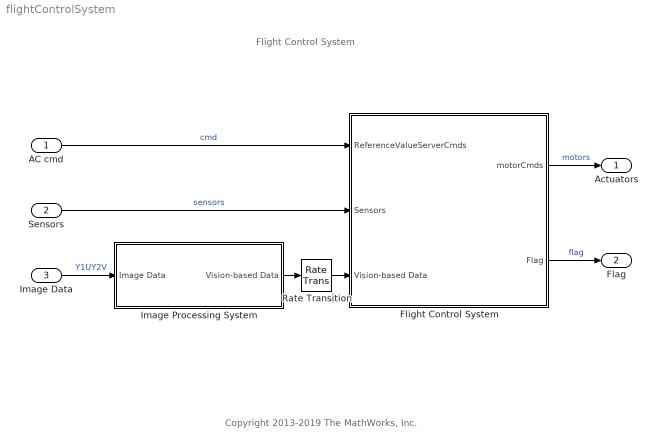
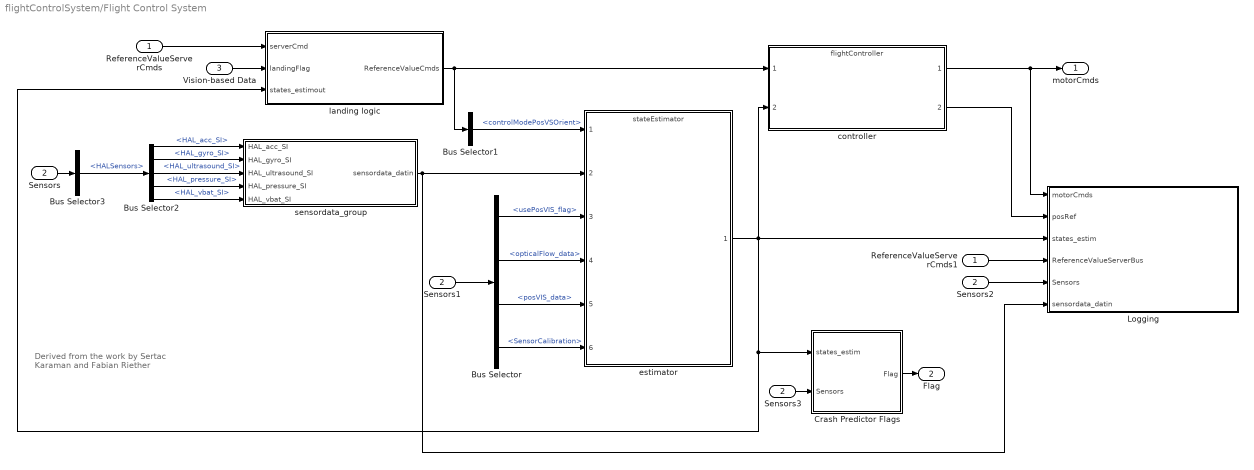
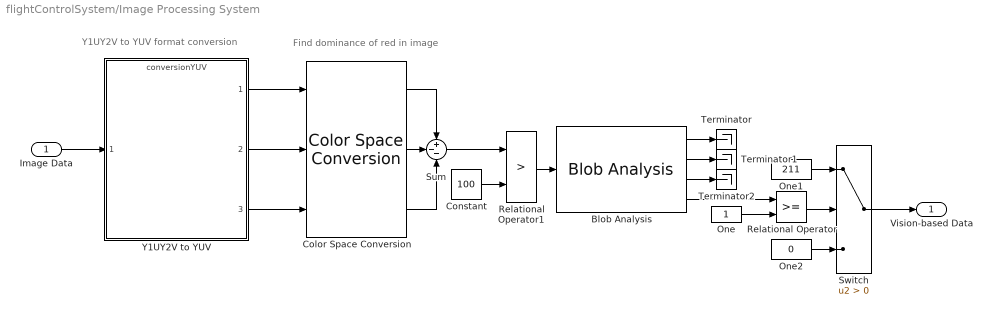
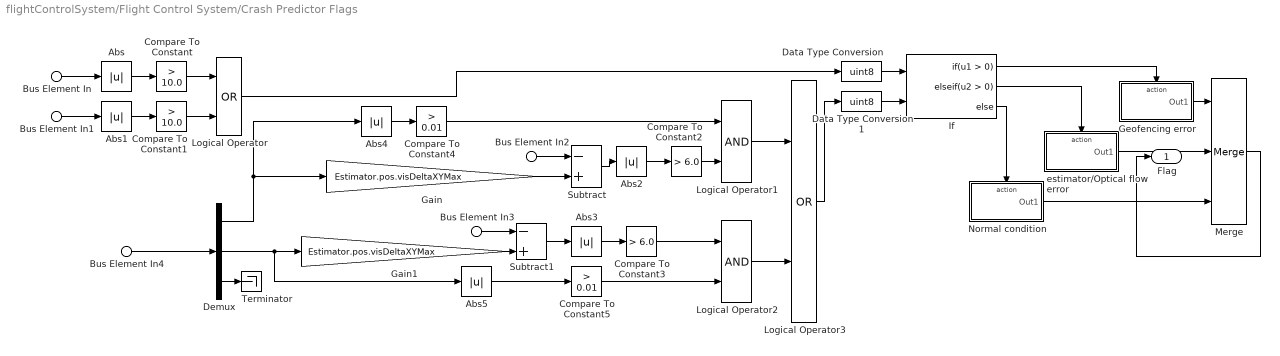
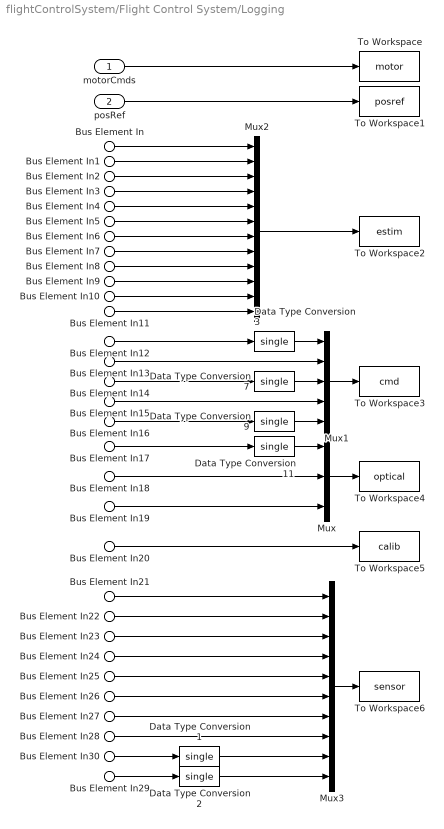
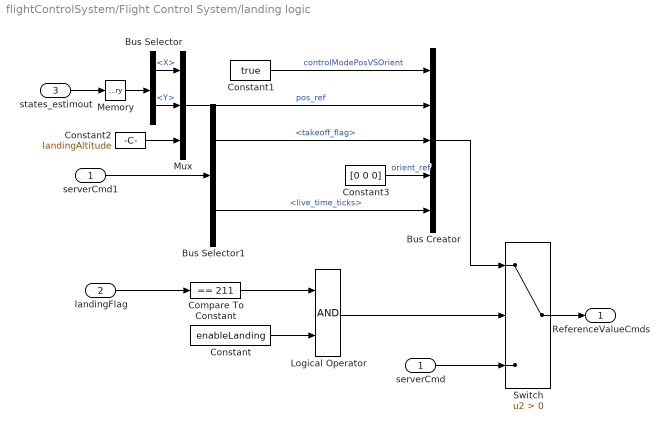
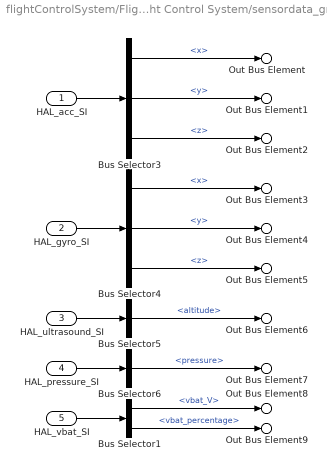
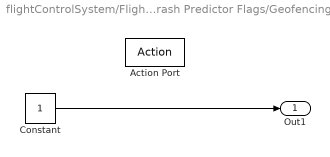
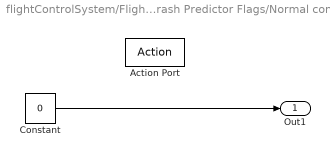
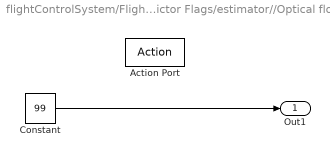
/*
 * Academic License - for use in teaching, academic research, and meeting
 * course requirements at degree granting institutions only.  Not for
 * government, commercial, or other organizational use.
 *
 * File: flightControlSystem.c
 *
 * Code generated for Simulink model 'flightControlSystem'.
 *
 * Model version                  : 4.3
 * Simulink Coder version         : 9.5 (R2021a) 14-Nov-2020
 * C/C++ source code generated on : Mon Jun  7 21:59:00 2021
 *
 * Target selection: ert.tlc
 * Embedded hardware selection: ARM Compatible->ARM 9
 * Code generation objectives: Unspecified
 * Validation result: Not run
 */

#include "flightControlSystem.h"
#include "flightControlSystem_private.h"

/* Exported block signals */
CommandBus cmd_inport;                 /* '<Root>/AC cmd' */
SensorsBus sensor_inport;              /* '<Root>/Sensors' */
real32_T motors_outport[4];            /* '<S1>/controller' */
uint8_T flag_outport;                  /* '<S3>/Merge' */

/* Block signals (default storage) */
B_flightControlSystem_T flightControlSystem_B;

/* Block states (default storage) */
DW_flightControlSystem_T flightControlSystem_DW;

/* External outputs (root outports fed by signals with default storage) */
ExtY_flightControlSystem_T flightControlSystem_Y;

/* Real-time model */
static RT_MODEL_flightControlSystem_T flightControlSystem_M_;
RT_MODEL_flightControlSystem_T *const flightControlSystem_M =
  &flightControlSystem_M_;
static void rate_monotonic_scheduler(void);

/*
 * Set which subrates need to run this base step (base rate always runs).
 * This function must be called prior to calling the model step function
 * in order to "remember" which rates need to run this base step.  The
 * buffering of events allows for overlapping preemption.
 */
void flightControlSystem_SetEventsForThisBaseStep(boolean_T *eventFlags)
{
  /* Task runs when its counter is zero, computed via rtmStepTask macro */
  eventFlags[1] = ((boolean_T)rtmStepTask(flightControlSystem_M, 1));
}

/*
 *   This function updates active task flag for each subrate
 * and rate transition flags for tasks that exchange data.
 * The function assumes rate-monotonic multitasking scheduler.
 * The function must be called at model base rate so that
 * the generated code self-manages all its subrates and rate
 * transition flags.
 */
static void rate_monotonic_scheduler(void)
{
  /* Compute which subrates run during the next base time step.  Subrates
   * are an integer multiple of the base rate counter.  Therefore, the subtask
   * counter is reset when it reaches its limit (zero means run).
   */
  (flightControlSystem_M->Timing.TaskCounters.TID[1])++;
  if ((flightControlSystem_M->Timing.TaskCounters.TID[1]) > 39) {/* Sample time: [0.2s, 0.0s] */
    flightControlSystem_M->Timing.TaskCounters.TID[1] = 0;
  }
}

/*
 * Output and update for action system:
 *    '<S3>/Geofencing error'
 *    '<S3>/estimator//Optical flow error'
 *    '<S3>/Normal condition'
 */
void flightControlSystem_Geofencingerror(uint8_T *rty_Out1,
  P_Geofencingerror_flightControlSystem_T *localP)
{
  /* SignalConversion generated from: '<S13>/Out1' incorporates:
   *  Constant: '<S13>/Constant'
   */
  *rty_Out1 = localP->Constant_Value;
}

/* System initialize for atomic system: '<S1>/Logging' */
void flightControlSystem_Logging_Init(RT_MODEL_flightControlSystem_T * const
  flightControlSystem_M, DW_Logging_flightControlSystem_T *localDW)
{
  /* SetupRuntimeResources for ToWorkspace: '<S4>/To Workspace2' */
  {
    static int_T rt_ToWksWidths[] = { 12 };

    static int_T rt_ToWksNumDimensions[] = { 1 };

    static int_T rt_ToWksDimensions[] = { 12 };

    static boolean_T rt_ToWksIsVarDims[] = { 0 };

    static void *rt_ToWksCurrSigDims[] = { (NULL) };

    static int_T rt_ToWksCurrSigDimsSize[] = { 4 };

    static BuiltInDTypeId rt_ToWksDataTypeIds[] = { SS_SINGLE };

    static int_T rt_ToWksComplexSignals[] = { 0 };

    static int_T rt_ToWksFrameData[] = { 0 };

    static RTWPreprocessingFcnPtr rt_ToWksLoggingPreprocessingFcnPtrs[] = {
      (NULL)
    };

    static const char_T *rt_ToWksLabels[] = { "" };

    static RTWLogSignalInfo rt_ToWksSignalInfo = {
      1,
      rt_ToWksWidths,
      rt_ToWksNumDimensions,
      rt_ToWksDimensions,
      rt_ToWksIsVarDims,
      rt_ToWksCurrSigDims,
      rt_ToWksCurrSigDimsSize,
      rt_ToWksDataTypeIds,
      rt_ToWksComplexSignals,
      rt_ToWksFrameData,
      rt_ToWksLoggingPreprocessingFcnPtrs,

      { rt_ToWksLabels },
      (NULL),
      (NULL),
      (NULL),

      { (NULL) },

      { (NULL) },
      (NULL),
      (NULL)
    };

    static const char_T rt_ToWksBlockName[] =
      "flightControlSystem/Flight Control System/Logging/To Workspace2";
    localDW->ToWorkspace2_PWORK.LoggedData = rt_CreateStructLogVar(
      flightControlSystem_M->rtwLogInfo,
      0.0,
      rtmGetTFinal(flightControlSystem_M),
      flightControlSystem_M->Timing.stepSize0,
      (&rtmGetErrorStatus(flightControlSystem_M)),
      "estim",
      1,
      0,
      1,
      0.005,
      &rt_ToWksSignalInfo,
      rt_ToWksBlockName);
    if (localDW->ToWorkspace2_PWORK.LoggedData == (NULL))
      return;
  }

  /* SetupRuntimeResources for ToWorkspace: '<S4>/To Workspace6' */
  {
    static int_T rt_ToWksWidths[] = { 10 };

    static int_T rt_ToWksNumDimensions[] = { 1 };

    static int_T rt_ToWksDimensions[] = { 10 };

    static boolean_T rt_ToWksIsVarDims[] = { 0 };

    static void *rt_ToWksCurrSigDims[] = { (NULL) };

    static int_T rt_ToWksCurrSigDimsSize[] = { 4 };

    static BuiltInDTypeId rt_ToWksDataTypeIds[] = { SS_SINGLE };

    static int_T rt_ToWksComplexSignals[] = { 0 };

    static int_T rt_ToWksFrameData[] = { 0 };

    static RTWPreprocessingFcnPtr rt_ToWksLoggingPreprocessingFcnPtrs[] = {
      (NULL)
    };

    static const char_T *rt_ToWksLabels[] = { "" };

    static RTWLogSignalInfo rt_ToWksSignalInfo = {
      1,
      rt_ToWksWidths,
      rt_ToWksNumDimensions,
      rt_ToWksDimensions,
      rt_ToWksIsVarDims,
      rt_ToWksCurrSigDims,
      rt_ToWksCurrSigDimsSize,
      rt_ToWksDataTypeIds,
      rt_ToWksComplexSignals,
      rt_ToWksFrameData,
      rt_ToWksLoggingPreprocessingFcnPtrs,

      { rt_ToWksLabels },
      (NULL),
      (NULL),
      (NULL),

      { (NULL) },

      { (NULL) },
      (NULL),
      (NULL)
    };

    static const char_T rt_ToWksBlockName[] =
      "flightControlSystem/Flight Control System/Logging/To Workspace6";
    localDW->ToWorkspace6_PWORK.LoggedData = rt_CreateStructLogVar(
      flightControlSystem_M->rtwLogInfo,
      0.0,
      rtmGetTFinal(flightControlSystem_M),
      flightControlSystem_M->Timing.stepSize0,
      (&rtmGetErrorStatus(flightControlSystem_M)),
      "sensor",
      1,
      0,
      1,
      0.005,
      &rt_ToWksSignalInfo,
      rt_ToWksBlockName);
    if (localDW->ToWorkspace6_PWORK.LoggedData == (NULL))
      return;
  }

  /* SetupRuntimeResources for ToWorkspace: '<S4>/To Workspace3' */
  {
    static int_T rt_ToWksWidths[] = { 9 };

    static int_T rt_ToWksNumDimensions[] = { 1 };

    static int_T rt_ToWksDimensions[] = { 9 };

    static boolean_T rt_ToWksIsVarDims[] = { 0 };

    static void *rt_ToWksCurrSigDims[] = { (NULL) };

    static int_T rt_ToWksCurrSigDimsSize[] = { 4 };

    static BuiltInDTypeId rt_ToWksDataTypeIds[] = { SS_SINGLE };

    static int_T rt_ToWksComplexSignals[] = { 0 };

    static int_T rt_ToWksFrameData[] = { 0 };

    static RTWPreprocessingFcnPtr rt_ToWksLoggingPreprocessingFcnPtrs[] = {
      (NULL)
    };

    static const char_T *rt_ToWksLabels[] = { "" };

    static RTWLogSignalInfo rt_ToWksSignalInfo = {
      1,
      rt_ToWksWidths,
      rt_ToWksNumDimensions,
      rt_ToWksDimensions,
      rt_ToWksIsVarDims,
      rt_ToWksCurrSigDims,
      rt_ToWksCurrSigDimsSize,
      rt_ToWksDataTypeIds,
      rt_ToWksComplexSignals,
      rt_ToWksFrameData,
      rt_ToWksLoggingPreprocessingFcnPtrs,

      { rt_ToWksLabels },
      (NULL),
      (NULL),
      (NULL),

      { (NULL) },

      { (NULL) },
      (NULL),
      (NULL)
    };

    static const char_T rt_ToWksBlockName[] =
      "flightControlSystem/Flight Control System/Logging/To Workspace3";
    localDW->ToWorkspace3_PWORK.LoggedData = rt_CreateStructLogVar(
      flightControlSystem_M->rtwLogInfo,
      0.0,
      rtmGetTFinal(flightControlSystem_M),
      flightControlSystem_M->Timing.stepSize0,
      (&rtmGetErrorStatus(flightControlSystem_M)),
      "cmd",
      1,
      0,
      1,
      0.005,
      &rt_ToWksSignalInfo,
      rt_ToWksBlockName);
    if (localDW->ToWorkspace3_PWORK.LoggedData == (NULL))
      return;
  }

  /* SetupRuntimeResources for ToWorkspace: '<S4>/To Workspace4' */
  {
    static int_T rt_ToWksWidths[] = { 8 };

    static int_T rt_ToWksNumDimensions[] = { 1 };

    static int_T rt_ToWksDimensions[] = { 8 };

    static boolean_T rt_ToWksIsVarDims[] = { 0 };

    static void *rt_ToWksCurrSigDims[] = { (NULL) };

    static int_T rt_ToWksCurrSigDimsSize[] = { 4 };

    static BuiltInDTypeId rt_ToWksDataTypeIds[] = { SS_SINGLE };

    static int_T rt_ToWksComplexSignals[] = { 0 };

    static int_T rt_ToWksFrameData[] = { 0 };

    static RTWPreprocessingFcnPtr rt_ToWksLoggingPreprocessingFcnPtrs[] = {
      (NULL)
    };

    static const char_T *rt_ToWksLabels[] = { "" };

    static RTWLogSignalInfo rt_ToWksSignalInfo = {
      1,
      rt_ToWksWidths,
      rt_ToWksNumDimensions,
      rt_ToWksDimensions,
      rt_ToWksIsVarDims,
      rt_ToWksCurrSigDims,
      rt_ToWksCurrSigDimsSize,
      rt_ToWksDataTypeIds,
      rt_ToWksComplexSignals,
      rt_ToWksFrameData,
      rt_ToWksLoggingPreprocessingFcnPtrs,

      { rt_ToWksLabels },
      (NULL),
      (NULL),
      (NULL),

      { (NULL) },

      { (NULL) },
      (NULL),
      (NULL)
    };

    static const char_T rt_ToWksBlockName[] =
      "flightControlSystem/Flight Control System/Logging/To Workspace4";
    localDW->ToWorkspace4_PWORK.LoggedData = rt_CreateStructLogVar(
      flightControlSystem_M->rtwLogInfo,
      0.0,
      rtmGetTFinal(flightControlSystem_M),
      flightControlSystem_M->Timing.stepSize0,
      (&rtmGetErrorStatus(flightControlSystem_M)),
      "optical",
      1,
      0,
      1,
      0.005,
      &rt_ToWksSignalInfo,
      rt_ToWksBlockName);
    if (localDW->ToWorkspace4_PWORK.LoggedData == (NULL))
      return;
  }

  /* SetupRuntimeResources for ToWorkspace: '<S4>/To Workspace5' */
  {
    static int_T rt_ToWksWidths[] = { 8 };

    static int_T rt_ToWksNumDimensions[] = { 1 };

    static int_T rt_ToWksDimensions[] = { 8 };

    static boolean_T rt_ToWksIsVarDims[] = { 0 };

    static void *rt_ToWksCurrSigDims[] = { (NULL) };

    static int_T rt_ToWksCurrSigDimsSize[] = { 4 };

    static BuiltInDTypeId rt_ToWksDataTypeIds[] = { SS_SINGLE };

    static int_T rt_ToWksComplexSignals[] = { 0 };

    static int_T rt_ToWksFrameData[] = { 0 };

    static RTWPreprocessingFcnPtr rt_ToWksLoggingPreprocessingFcnPtrs[] = {
      (NULL)
    };

    static const char_T *rt_ToWksLabels[] = { "SensorCalibration" };

    static RTWLogSignalInfo rt_ToWksSignalInfo = {
      1,
      rt_ToWksWidths,
      rt_ToWksNumDimensions,
      rt_ToWksDimensions,
      rt_ToWksIsVarDims,
      rt_ToWksCurrSigDims,
      rt_ToWksCurrSigDimsSize,
      rt_ToWksDataTypeIds,
      rt_ToWksComplexSignals,
      rt_ToWksFrameData,
      rt_ToWksLoggingPreprocessingFcnPtrs,

      { rt_ToWksLabels },
      (NULL),
      (NULL),
      (NULL),

      { (NULL) },

      { (NULL) },
      (NULL),
      (NULL)
    };

    static const char_T rt_ToWksBlockName[] =
      "flightControlSystem/Flight Control System/Logging/To Workspace5";
    localDW->ToWorkspace5_PWORK.LoggedData = rt_CreateStructLogVar(
      flightControlSystem_M->rtwLogInfo,
      0.0,
      rtmGetTFinal(flightControlSystem_M),
      flightControlSystem_M->Timing.stepSize0,
      (&rtmGetErrorStatus(flightControlSystem_M)),
      "calib",
      1,
      0,
      100,
      0.005,
      &rt_ToWksSignalInfo,
      rt_ToWksBlockName);
    if (localDW->ToWorkspace5_PWORK.LoggedData == (NULL))
      return;
  }

  /* SetupRuntimeResources for ToWorkspace: '<S4>/To Workspace' */
  {
    static int_T rt_ToWksWidths[] = { 4 };

    static int_T rt_ToWksNumDimensions[] = { 1 };

    static int_T rt_ToWksDimensions[] = { 4 };

    static boolean_T rt_ToWksIsVarDims[] = { 0 };

    static void *rt_ToWksCurrSigDims[] = { (NULL) };

    static int_T rt_ToWksCurrSigDimsSize[] = { 4 };

    static BuiltInDTypeId rt_ToWksDataTypeIds[] = { SS_SINGLE };

    static int_T rt_ToWksComplexSignals[] = { 0 };

    static int_T rt_ToWksFrameData[] = { 0 };

    static RTWPreprocessingFcnPtr rt_ToWksLoggingPreprocessingFcnPtrs[] = {
      (NULL)
    };

    static const char_T *rt_ToWksLabels[] = { "" };

    static RTWLogSignalInfo rt_ToWksSignalInfo = {
      1,
      rt_ToWksWidths,
      rt_ToWksNumDimensions,
      rt_ToWksDimensions,
      rt_ToWksIsVarDims,
      rt_ToWksCurrSigDims,
      rt_ToWksCurrSigDimsSize,
      rt_ToWksDataTypeIds,
      rt_ToWksComplexSignals,
      rt_ToWksFrameData,
      rt_ToWksLoggingPreprocessingFcnPtrs,

      { rt_ToWksLabels },
      (NULL),
      (NULL),
      (NULL),

      { (NULL) },

      { (NULL) },
      (NULL),
      (NULL)
    };

    static const char_T rt_ToWksBlockName[] =
      "flightControlSystem/Flight Control System/Logging/To Workspace";
    localDW->ToWorkspace_PWORK.LoggedData = rt_CreateStructLogVar(
      flightControlSystem_M->rtwLogInfo,
      0.0,
      rtmGetTFinal(flightControlSystem_M),
      flightControlSystem_M->Timing.stepSize0,
      (&rtmGetErrorStatus(flightControlSystem_M)),
      "motor",
      1,
      0,
      1,
      0.005,
      &rt_ToWksSignalInfo,
      rt_ToWksBlockName);
    if (localDW->ToWorkspace_PWORK.LoggedData == (NULL))
      return;
  }

  /* SetupRuntimeResources for ToWorkspace: '<S4>/To Workspace1' */
  {
    static int_T rt_ToWksWidths[] = { 8 };

    static int_T rt_ToWksNumDimensions[] = { 1 };

    static int_T rt_ToWksDimensions[] = { 8 };

    static boolean_T rt_ToWksIsVarDims[] = { 0 };

    static void *rt_ToWksCurrSigDims[] = { (NULL) };

    static int_T rt_ToWksCurrSigDimsSize[] = { 4 };

    static BuiltInDTypeId rt_ToWksDataTypeIds[] = { SS_SINGLE };

    static int_T rt_ToWksComplexSignals[] = { 0 };

    static int_T rt_ToWksFrameData[] = { 0 };

    static RTWPreprocessingFcnPtr rt_ToWksLoggingPreprocessingFcnPtrs[] = {
      (NULL)
    };

    static const char_T *rt_ToWksLabels[] = { "" };

    static RTWLogSignalInfo rt_ToWksSignalInfo = {
      1,
      rt_ToWksWidths,
      rt_ToWksNumDimensions,
      rt_ToWksDimensions,
      rt_ToWksIsVarDims,
      rt_ToWksCurrSigDims,
      rt_ToWksCurrSigDimsSize,
      rt_ToWksDataTypeIds,
      rt_ToWksComplexSignals,
      rt_ToWksFrameData,
      rt_ToWksLoggingPreprocessingFcnPtrs,

      { rt_ToWksLabels },
      (NULL),
      (NULL),
      (NULL),

      { (NULL) },

      { (NULL) },
      (NULL),
      (NULL)
    };

    static const char_T rt_ToWksBlockName[] =
      "flightControlSystem/Flight Control System/Logging/To Workspace1";
    localDW->ToWorkspace1_PWORK.LoggedData = rt_CreateStructLogVar(
      flightControlSystem_M->rtwLogInfo,
      0.0,
      rtmGetTFinal(flightControlSystem_M),
      flightControlSystem_M->Timing.stepSize0,
      (&rtmGetErrorStatus(flightControlSystem_M)),
      "posref",
      1,
      0,
      1,
      0.005,
      &rt_ToWksSignalInfo,
      rt_ToWksBlockName);
    if (localDW->ToWorkspace1_PWORK.LoggedData == (NULL))
      return;
  }
}

/* Output and update for atomic system: '<S1>/Logging' */
void flightControlSystem_Logging(RT_MODEL_flightControlSystem_T * const
  flightControlSystem_M, const real32_T rtu_motorCmds[4], const real32_T
  rtu_posRef[8], const statesEstim_t *rtu_states_estim_Inport_3, const
  CommandBus *rtu_ReferenceValueServerBus_Inport_4, const SensorsBus
  *rtu_Sensors_Inport_5, real32_T rtu_sensordata_datin_Inport_6, uint32_T
  rtu_sensordata_datin_Inport_6_d, real32_T rtu_sensordata_datin_Inport_6_e,
  real32_T rtu_sensordata_datin_Inport_6_c, real32_T
  rtu_sensordata_datin_Inport_6_cg, real32_T rtu_sensordata_datin_Inport_6_i,
  real32_T rtu_sensordata_datin_Inport_6_h, real32_T
  rtu_sensordata_datin_Inport_6_b, real32_T rtu_sensordata_datin_Inport_6_dz,
  real32_T rtu_sensordata_datin_Inport_6_n, B_Logging_flightControlSystem_T
  *localB, DW_Logging_flightControlSystem_T *localDW)
{
  int32_T i;
  real32_T rtb_TmpSignalConversionAtToWorkspace4Inport1[8];
  real32_T rtb_DataTypeConversion11;
  real32_T rtb_DataTypeConversion7;

  /* DataTypeConversion: '<S4>/Data Type Conversion7' incorporates:
   *  SignalConversion generated from: '<S4>/states_estim_BusSelector'
   */
  rtb_DataTypeConversion7 = rtu_states_estim_Inport_3->q;

  /* DataTypeConversion: '<S4>/Data Type Conversion11' incorporates:
   *  SignalConversion generated from: '<S4>/states_estim_BusSelector'
   */
  rtb_DataTypeConversion11 = rtu_states_estim_Inport_3->r;

  /* SignalConversion generated from: '<S4>/To Workspace2' incorporates:
   *  SignalConversion generated from: '<S4>/states_estim_BusSelector'
   */
  localB->TmpSignalConversionAtToWorkspace2Inport1[0] =
    rtu_states_estim_Inport_3->X;
  localB->TmpSignalConversionAtToWorkspace2Inport1[1] =
    rtu_states_estim_Inport_3->Y;
  localB->TmpSignalConversionAtToWorkspace2Inport1[2] =
    rtu_states_estim_Inport_3->Z;
  localB->TmpSignalConversionAtToWorkspace2Inport1[3] =
    rtu_states_estim_Inport_3->yaw;
  localB->TmpSignalConversionAtToWorkspace2Inport1[4] =
    rtu_states_estim_Inport_3->pitch;
  localB->TmpSignalConversionAtToWorkspace2Inport1[5] =
    rtu_states_estim_Inport_3->roll;
  localB->TmpSignalConversionAtToWorkspace2Inport1[6] =
    rtu_states_estim_Inport_3->dx;
  localB->TmpSignalConversionAtToWorkspace2Inport1[7] =
    rtu_states_estim_Inport_3->dy;
  localB->TmpSignalConversionAtToWorkspace2Inport1[8] =
    rtu_states_estim_Inport_3->dz;
  localB->TmpSignalConversionAtToWorkspace2Inport1[9] =
    rtu_states_estim_Inport_3->p;
  localB->TmpSignalConversionAtToWorkspace2Inport1[10] = rtb_DataTypeConversion7;
  localB->TmpSignalConversionAtToWorkspace2Inport1[11] =
    rtb_DataTypeConversion11;

  /* ToWorkspace: '<S4>/To Workspace2' */
  {
    double locTime = flightControlSystem_M->Timing.taskTime0;
    ;
    rt_UpdateStructLogVar((StructLogVar *)localDW->ToWorkspace2_PWORK.LoggedData,
                          &locTime,
                          &localB->TmpSignalConversionAtToWorkspace2Inport1[0]);
  }

  /* DataTypeConversion: '<S4>/Data Type Conversion11' incorporates:
   *  DataTypeConversion: '<S4>/Data Type Conversion1'
   */
  rtb_DataTypeConversion11 = rtu_sensordata_datin_Inport_6;

  /* DataTypeConversion: '<S4>/Data Type Conversion7' incorporates:
   *  DataTypeConversion: '<S4>/Data Type Conversion2'
   */
  rtb_DataTypeConversion7 = (real32_T)rtu_sensordata_datin_Inport_6_d;

  /* SignalConversion generated from: '<S4>/To Workspace6' */
  localB->TmpSignalConversionAtToWorkspace6Inport1[0] =
    rtu_sensordata_datin_Inport_6_e;
  localB->TmpSignalConversionAtToWorkspace6Inport1[1] =
    rtu_sensordata_datin_Inport_6_c;
  localB->TmpSignalConversionAtToWorkspace6Inport1[2] =
    rtu_sensordata_datin_Inport_6_cg;
  localB->TmpSignalConversionAtToWorkspace6Inport1[3] =
    rtu_sensordata_datin_Inport_6_i;
  localB->TmpSignalConversionAtToWorkspace6Inport1[4] =
    rtu_sensordata_datin_Inport_6_h;
  localB->TmpSignalConversionAtToWorkspace6Inport1[5] =
    rtu_sensordata_datin_Inport_6_b;
  localB->TmpSignalConversionAtToWorkspace6Inport1[6] =
    rtu_sensordata_datin_Inport_6_dz;
  localB->TmpSignalConversionAtToWorkspace6Inport1[7] =
    rtu_sensordata_datin_Inport_6_n;
  localB->TmpSignalConversionAtToWorkspace6Inport1[8] = rtb_DataTypeConversion11;
  localB->TmpSignalConversionAtToWorkspace6Inport1[9] = rtb_DataTypeConversion7;

  /* ToWorkspace: '<S4>/To Workspace6' */
  {
    double locTime = flightControlSystem_M->Timing.taskTime0;
    ;
    rt_UpdateStructLogVar((StructLogVar *)localDW->ToWorkspace6_PWORK.LoggedData,
                          &locTime,
                          &localB->TmpSignalConversionAtToWorkspace6Inport1[0]);
  }

  /* DataTypeConversion: '<S4>/Data Type Conversion11' incorporates:
   *  DataTypeConversion: '<S4>/Data Type Conversion3'
   */
  rtb_DataTypeConversion11 =
    rtu_ReferenceValueServerBus_Inport_4->controlModePosVSOrient;

  /* DataTypeConversion: '<S4>/Data Type Conversion7' */
  rtb_DataTypeConversion7 = rtu_ReferenceValueServerBus_Inport_4->takeoff_flag;

  /* SignalConversion generated from: '<S4>/To Workspace3' incorporates:
   *  DataTypeConversion: '<S4>/Data Type Conversion9'
   *  SignalConversion generated from: '<S4>/ReferenceValueServerBus_BusSelector'
   */
  localB->TmpSignalConversionAtToWorkspace3Inport1[0] = rtb_DataTypeConversion11;
  localB->TmpSignalConversionAtToWorkspace3Inport1[4] = rtb_DataTypeConversion7;
  localB->TmpSignalConversionAtToWorkspace3Inport1[1] =
    rtu_ReferenceValueServerBus_Inport_4->pos_ref[0];
  localB->TmpSignalConversionAtToWorkspace3Inport1[5] =
    rtu_ReferenceValueServerBus_Inport_4->orient_ref[0];
  localB->TmpSignalConversionAtToWorkspace3Inport1[2] =
    rtu_ReferenceValueServerBus_Inport_4->pos_ref[1];
  localB->TmpSignalConversionAtToWorkspace3Inport1[6] =
    rtu_ReferenceValueServerBus_Inport_4->orient_ref[1];
  localB->TmpSignalConversionAtToWorkspace3Inport1[3] =
    rtu_ReferenceValueServerBus_Inport_4->pos_ref[2];
  localB->TmpSignalConversionAtToWorkspace3Inport1[7] =
    rtu_ReferenceValueServerBus_Inport_4->orient_ref[2];
  localB->TmpSignalConversionAtToWorkspace3Inport1[8] = (real32_T)
    rtu_ReferenceValueServerBus_Inport_4->live_time_ticks;

  /* ToWorkspace: '<S4>/To Workspace3' */
  {
    double locTime = flightControlSystem_M->Timing.taskTime0;
    ;
    rt_UpdateStructLogVar((StructLogVar *)localDW->ToWorkspace3_PWORK.LoggedData,
                          &locTime,
                          &localB->TmpSignalConversionAtToWorkspace3Inport1[0]);
  }

  /* DataTypeConversion: '<S4>/Data Type Conversion11' */
  rtb_DataTypeConversion11 = rtu_Sensors_Inport_5->VisionSensors.usePosVIS_flag;

  /* SignalConversion generated from: '<S4>/To Workspace4' incorporates:
   *  SignalConversion generated from: '<S4>/Sensors_BusSelector'
   */
  rtb_TmpSignalConversionAtToWorkspace4Inport1[0] = rtb_DataTypeConversion11;
  rtb_TmpSignalConversionAtToWorkspace4Inport1[1] =
    rtu_Sensors_Inport_5->VisionSensors.opticalFlow_data[0];
  rtb_TmpSignalConversionAtToWorkspace4Inport1[2] =
    rtu_Sensors_Inport_5->VisionSensors.opticalFlow_data[1];
  rtb_TmpSignalConversionAtToWorkspace4Inport1[3] =
    rtu_Sensors_Inport_5->VisionSensors.opticalFlow_data[2];
  rtb_TmpSignalConversionAtToWorkspace4Inport1[4] =
    rtu_Sensors_Inport_5->VisionSensors.posVIS_data[0];
  rtb_TmpSignalConversionAtToWorkspace4Inport1[5] =
    rtu_Sensors_Inport_5->VisionSensors.posVIS_data[1];
  rtb_TmpSignalConversionAtToWorkspace4Inport1[6] =
    rtu_Sensors_Inport_5->VisionSensors.posVIS_data[2];
  rtb_TmpSignalConversionAtToWorkspace4Inport1[7] =
    rtu_Sensors_Inport_5->VisionSensors.posVIS_data[3];

  /* ToWorkspace: '<S4>/To Workspace4' */
  {
    double locTime = flightControlSystem_M->Timing.taskTime0;
    ;
    rt_UpdateStructLogVar((StructLogVar *)localDW->ToWorkspace4_PWORK.LoggedData,
                          &locTime,
                          &rtb_TmpSignalConversionAtToWorkspace4Inport1[0]);
  }

  /* SignalConversion generated from: '<S4>/Sensors_BusSelector' */
  for (i = 0; i < 8; i++) {
    rtb_TmpSignalConversionAtToWorkspace4Inport1[i] =
      rtu_Sensors_Inport_5->SensorCalibration[i];
  }

  /* ToWorkspace: '<S4>/To Workspace5' */
  {
    double locTime = flightControlSystem_M->Timing.taskTime0;
    ;
    rt_UpdateStructLogVar((StructLogVar *)localDW->ToWorkspace5_PWORK.LoggedData,
                          &locTime,
                          &rtb_TmpSignalConversionAtToWorkspace4Inport1[0]);
  }

  /* ToWorkspace: '<S4>/To Workspace' */
  {
    double locTime = flightControlSystem_M->Timing.taskTime0;
    ;
    rt_UpdateStructLogVar((StructLogVar *)localDW->ToWorkspace_PWORK.LoggedData,
                          &locTime, &rtu_motorCmds[0]);
  }

  /* ToWorkspace: '<S4>/To Workspace1' */
  {
    double locTime = flightControlSystem_M->Timing.taskTime0;
    ;
    rt_UpdateStructLogVar((StructLogVar *)localDW->ToWorkspace1_PWORK.LoggedData,
                          &locTime, &rtu_posRef[0]);
  }
}

/* System initialize for atomic system: '<Root>/Flight Control System' */
void flightControlSystem_FlightControlSystem_Init(RT_MODEL_flightControlSystem_T
  * const flightControlSystem_M, uint8_T *rty_Flag,
  DW_FlightControlSystem_flightControlSystem_T *localDW,
  P_FlightControlSystem_flightControlSystem_T *localP)
{
  /* InitializeConditions for Memory: '<S5>/Memory' */
  localDW->Memory_PreviousInput = localP->Memory_InitialCondition;

  /* SystemInitialize for Atomic SubSystem: '<S1>/Logging' */
  flightControlSystem_Logging_Init(flightControlSystem_M, &localDW->Logging);

  /* End of SystemInitialize for SubSystem: '<S1>/Logging' */

  /* SystemInitialize for Merge: '<S3>/Merge' */
  *rty_Flag = localP->Merge_InitialOutput;

  /* SystemInitialize for ModelReference: '<S1>/controller' */
  flightController_Init();

  /* SystemInitialize for ModelReference: '<S1>/estimator' */
  stateEstimator_Init();
}

/* Output and update for atomic system: '<Root>/Flight Control System' */
void flightControlSystem_FlightControlSystem(RT_MODEL_flightControlSystem_T *
  const flightControlSystem_M, const CommandBus *rtu_ReferenceValueServerCmds,
  const SensorsBus *rtu_Sensors, real_T rtu_VisionbasedData, real32_T
  rty_motorCmds[4], uint8_T *rty_Flag,
  B_FlightControlSystem_flightControlSystem_T *localB,
  DW_FlightControlSystem_flightControlSystem_T *localDW,
  P_FlightControlSystem_flightControlSystem_T *localP)
{
  /* Switch: '<S5>/Switch' incorporates:
   *  BusCreator: '<S5>/Bus Creator'
   *  Constant: '<S16>/Constant'
   *  Constant: '<S5>/Constant'
   *  Constant: '<S5>/Constant1'
   *  Constant: '<S5>/Constant2'
   *  Constant: '<S5>/Constant3'
   *  Logic: '<S5>/Logical Operator'
   *  Memory: '<S5>/Memory'
   *  RelationalOperator: '<S16>/Compare'
   *  SignalConversion generated from: '<S5>/Bus Creator'
   */
  if ((rtu_VisionbasedData == localP->CompareToConstant_const) &&
      rtP_enableLanding) {
    localB->Switch_o.controlModePosVSOrient = localP->Constant1_Value;
    localB->Switch_o.pos_ref[0] = localDW->Memory_PreviousInput.X;
    localB->Switch_o.pos_ref[1] = localDW->Memory_PreviousInput.Y;
    localB->Switch_o.pos_ref[2] = rtP_landingAltitude;
    localB->Switch_o.takeoff_flag = rtu_ReferenceValueServerCmds->takeoff_flag;
    localB->Switch_o.orient_ref[0] = localP->Constant3_Value[0];
    localB->Switch_o.orient_ref[1] = localP->Constant3_Value[1];
    localB->Switch_o.orient_ref[2] = localP->Constant3_Value[2];
    localB->Switch_o.live_time_ticks =
      rtu_ReferenceValueServerCmds->live_time_ticks;
  } else {
    localB->Switch_o = *rtu_ReferenceValueServerCmds;
  }

  /* End of Switch: '<S5>/Switch' */

  /* SignalConversion generated from: '<S6>/Bus Selector3' */
  localB->rtb_x_m = rtu_Sensors->HALSensors.HAL_acc_SI.x;

  /* SignalConversion generated from: '<S6>/Bus Selector3' */
  localB->rtb_y_c = rtu_Sensors->HALSensors.HAL_acc_SI.y;

  /* SignalConversion generated from: '<S6>/Bus Selector3' */
  localB->rtb_z_k = rtu_Sensors->HALSensors.HAL_acc_SI.z;

  /* SignalConversion generated from: '<S6>/Bus Selector4' */
  localB->rtb_x_c_c = rtu_Sensors->HALSensors.HAL_gyro_SI.x;

  /* SignalConversion generated from: '<S6>/Bus Selector4' */
  localB->rtb_y_n_b = rtu_Sensors->HALSensors.HAL_gyro_SI.y;

  /* SignalConversion generated from: '<S6>/Bus Selector4' */
  localB->rtb_z_p_p = rtu_Sensors->HALSensors.HAL_gyro_SI.z;

  /* SignalConversion generated from: '<S6>/Bus Selector5' */
  localB->rtb_altitude_c = rtu_Sensors->HALSensors.HAL_ultrasound_SI.altitude;

  /* SignalConversion generated from: '<S6>/Bus Selector6' */
  localB->rtb_pressure_f = rtu_Sensors->HALSensors.HAL_pressure_SI.pressure;

  /* SignalConversion generated from: '<S6>/Bus Selector1' */
  localB->rtb_vbat_V_g = rtu_Sensors->HALSensors.HAL_vbat_SI.vbat_V;

  /* SignalConversion generated from: '<S6>/Bus Selector1' */
  localB->rtb_vbat_percentage_g =
    rtu_Sensors->HALSensors.HAL_vbat_SI.vbat_percentage;

  /* BusCreator generated from: '<S1>/estimator' */
  localB->BusConversion_InsertedFor_estimator_at_inport_1_BusCreator1.ddx =
    localB->rtb_x_m;
  localB->BusConversion_InsertedFor_estimator_at_inport_1_BusCreator1.ddy =
    localB->rtb_y_c;
  localB->BusConversion_InsertedFor_estimator_at_inport_1_BusCreator1.ddz =
    localB->rtb_z_k;
  localB->BusConversion_InsertedFor_estimator_at_inport_1_BusCreator1.p =
    localB->rtb_x_c_c;
  localB->BusConversion_InsertedFor_estimator_at_inport_1_BusCreator1.q =
    localB->rtb_y_n_b;
  localB->BusConversion_InsertedFor_estimator_at_inport_1_BusCreator1.r =
    localB->rtb_z_p_p;
  localB->BusConversion_InsertedFor_estimator_at_inport_1_BusCreator1.altitude_sonar
    = localB->rtb_altitude_c;
  localB->BusConversion_InsertedFor_estimator_at_inport_1_BusCreator1.prs =
    localB->rtb_pressure_f;
  localB->BusConversion_InsertedFor_estimator_at_inport_1_BusCreator1.vbat_V =
    localB->rtb_vbat_V_g;
  localB->BusConversion_InsertedFor_estimator_at_inport_1_BusCreator1.vbat_percentage
    = localB->rtb_vbat_percentage_g;

  /* ModelReference: '<S1>/estimator' */
  stateEstimator_run(localB->Switch_o.controlModePosVSOrient,
                     &localB->BusConversion_InsertedFor_estimator_at_inport_1_BusCreator1,
                     rtu_Sensors->VisionSensors.usePosVIS_flag,
                     &rtu_Sensors->VisionSensors.opticalFlow_data[0],
                     &rtu_Sensors->VisionSensors.posVIS_data[0],
                     &localB->estimator, &rtu_Sensors->SensorCalibration[0]);

  /* ModelReference: '<S1>/controller' */
  flightController_run(&localB->Switch_o, &localB->estimator, &rty_motorCmds[0],
                       &localB->controller_o2[0]);

  /* Outputs for Atomic SubSystem: '<S1>/Logging' */
  flightControlSystem_Logging(flightControlSystem_M, rty_motorCmds,
    localB->controller_o2, &localB->estimator, rtu_ReferenceValueServerCmds,
    rtu_Sensors, localB->rtb_vbat_V_g, localB->rtb_vbat_percentage_g,
    localB->rtb_x_m, localB->rtb_y_c, localB->rtb_z_k, localB->rtb_x_c_c,
    localB->rtb_y_n_b, localB->rtb_z_p_p, localB->rtb_altitude_c,
    localB->rtb_pressure_f, &localB->Logging, &localDW->Logging);

  /* End of Outputs for SubSystem: '<S1>/Logging' */

  /* If: '<S3>/If' incorporates:
   *  Abs: '<S3>/Abs'
   *  Abs: '<S3>/Abs1'
   *  Abs: '<S3>/Abs2'
   *  Abs: '<S3>/Abs3'
   *  Abs: '<S3>/Abs4'
   *  Abs: '<S3>/Abs5'
   *  Constant: '<S10>/Constant'
   *  Constant: '<S11>/Constant'
   *  Constant: '<S12>/Constant'
   *  Constant: '<S7>/Constant'
   *  Constant: '<S8>/Constant'
   *  Constant: '<S9>/Constant'
   *  Gain: '<S3>/Gain'
   *  Gain: '<S3>/Gain1'
   *  Logic: '<S3>/Logical Operator'
   *  Logic: '<S3>/Logical Operator1'
   *  Logic: '<S3>/Logical Operator2'
   *  Logic: '<S3>/Logical Operator3'
   *  RelationalOperator: '<S10>/Compare'
   *  RelationalOperator: '<S11>/Compare'
   *  RelationalOperator: '<S12>/Compare'
   *  RelationalOperator: '<S7>/Compare'
   *  RelationalOperator: '<S8>/Compare'
   *  RelationalOperator: '<S9>/Compare'
   *  Sum: '<S3>/Subtract'
   *  Sum: '<S3>/Subtract1'
   */
  if (((real32_T)fabs(localB->estimator.X) > localP->CompareToConstant_const_o) ||
      ((real32_T)fabs(localB->estimator.Y) > localP->CompareToConstant1_const))
  {
    /* Outputs for IfAction SubSystem: '<S3>/Geofencing error' incorporates:
     *  ActionPort: '<S13>/Action Port'
     */
    flightControlSystem_Geofencingerror(rty_Flag, &localP->Geofencingerror);

    /* End of Outputs for SubSystem: '<S3>/Geofencing error' */
  } else if ((((real32_T)fabs(rtu_Sensors->VisionSensors.opticalFlow_data[0]) >
               localP->CompareToConstant4_const) && ((real32_T)fabs
               (localP->Gain_Gain * rtu_Sensors->VisionSensors.opticalFlow_data
                [0] - localB->estimator.dx) > localP->CompareToConstant2_const))
             || (((real32_T)fabs(localP->Gain1_Gain *
                rtu_Sensors->VisionSensors.opticalFlow_data[1] -
                localB->estimator.dy) > localP->CompareToConstant3_const) &&
                 ((real32_T)fabs(rtu_Sensors->VisionSensors.opticalFlow_data[1])
                  > localP->CompareToConstant5_const))) {
    /* Outputs for IfAction SubSystem: '<S3>/estimator//Optical flow error' incorporates:
     *  ActionPort: '<S15>/Action Port'
     */
    flightControlSystem_Geofencingerror(rty_Flag,
      &localP->estimatorOpticalflowerror);

    /* End of Outputs for SubSystem: '<S3>/estimator//Optical flow error' */
  } else {
    /* Outputs for IfAction SubSystem: '<S3>/Normal condition' incorporates:
     *  ActionPort: '<S14>/Action Port'
     */
    flightControlSystem_Geofencingerror(rty_Flag, &localP->Normalcondition);

    /* End of Outputs for SubSystem: '<S3>/Normal condition' */
  }

  /* End of If: '<S3>/If' */

  /* Update for Memory: '<S5>/Memory' */
  localDW->Memory_PreviousInput = localB->estimator;
}

/* Model step function for TID0 */
void flightControlSystem_step0(void)   /* Sample time: [0.005s, 0.0s] */
{
  {                                    /* Sample time: [0.005s, 0.0s] */
    rate_monotonic_scheduler();
  }

  /* RateTransition: '<Root>/Rate Transition' */
  flightControlSystem_B.rtb_RateTransition_c =
    flightControlSystem_DW.RateTransition_Buffer[flightControlSystem_DW.RateTransition_ActiveBufIdx];

  /* Outputs for Atomic SubSystem: '<Root>/Flight Control System' */

  /* Inport: '<Root>/AC cmd' incorporates:
   *  Inport: '<Root>/Sensors'
   */
  flightControlSystem_FlightControlSystem(flightControlSystem_M, &cmd_inport,
    &sensor_inport, flightControlSystem_B.rtb_RateTransition_c, motors_outport,
    &flag_outport, &flightControlSystem_B.FlightControlSystem,
    &flightControlSystem_DW.FlightControlSystem,
    &flightControlSystem_P.FlightControlSystem);

  /* End of Outputs for SubSystem: '<Root>/Flight Control System' */

  /* Outport: '<Root>/Actuators' */
  flightControlSystem_Y.Actuators[0] = motors_outport[0];
  flightControlSystem_Y.Actuators[1] = motors_outport[1];
  flightControlSystem_Y.Actuators[2] = motors_outport[2];
  flightControlSystem_Y.Actuators[3] = motors_outport[3];

  /* Outport: '<Root>/Flag' */
  flightControlSystem_Y.Flag = flag_outport;

  /* Matfile logging */
  rt_UpdateTXYLogVars(flightControlSystem_M->rtwLogInfo,
                      (&flightControlSystem_M->Timing.taskTime0));

  /* signal main to stop simulation */
  {                                    /* Sample time: [0.005s, 0.0s] */
    if ((rtmGetTFinal(flightControlSystem_M)!=-1) &&
        !((rtmGetTFinal(flightControlSystem_M)-
           flightControlSystem_M->Timing.taskTime0) >
          flightControlSystem_M->Timing.taskTime0 * (DBL_EPSILON))) {
      rtmSetErrorStatus(flightControlSystem_M, "Simulation finished");
    }
  }

  /* Update absolute time */
  /* The "clockTick0" counts the number of times the code of this task has
   * been executed. The absolute time is the multiplication of "clockTick0"
   * and "Timing.stepSize0". Size of "clockTick0" ensures timer will not
   * overflow during the application lifespan selected.
   */
  flightControlSystem_M->Timing.taskTime0 =
    ((time_T)(++flightControlSystem_M->Timing.clockTick0)) *
    flightControlSystem_M->Timing.stepSize0;
}

/* Model step function for TID1 */
void flightControlSystem_step1(void)   /* Sample time: [0.2s, 0.0s] */
{
  int32_T j;
  int32_T j_pixListNinc;
  int32_T m;
  int32_T ms;
  int32_T ns;
  int32_T numLoops;
  int32_T p;
  real32_T centroid_idx_0;
  real32_T centroid_idx_1;
  uint32_T centerIdx;
  uint32_T padIdx;
  uint32_T pixIdx;
  uint32_T walkerIdx;
  uint8_T currentLabel;
  boolean_T maxNumBlobsReached;

  /* Outputs for Atomic SubSystem: '<Root>/Image Processing System' */
  /* ModelReference: '<S2>/Y1UY2V to YUV' incorporates:
   *  Inport: '<Root>/Image Data'
   */
  conversionYUV(&imRGB[0], &flightControlSystem_B.Y1UY2VtoYUV_o1[0],
                &flightControlSystem_B.Y1UY2VtoYUV_o2[0],
                &flightControlSystem_B.Y1UY2VtoYUV_o3[0],
                &(flightControlSystem_DW.Y1UY2VtoYUV_InstanceData.rtb));

  /* S-Function (svipcolorconv): '<S2>/Color Space  Conversion' incorporates:
   *  ModelReference: '<S2>/Y1UY2V to YUV'
   */
  /* Precompute constants */
  pixIdx = ((uint16_T)26149U) * 128U;
  padIdx = (((uint16_T)6419U) * 128U + ((uint16_T)13320U) * 128U) + 8192U;
  centerIdx = ((uint16_T)33050U) * 128U;
  for (flightControlSystem_B.loop = 0; flightControlSystem_B.loop < 19200;
       flightControlSystem_B.loop++) {
    /* Convert YcbCr to RGB; apply coefficients and offsets */
    /* derived from the ITU BT.601-5 recommendation; all of the */
    /* coefficients and offsets are scaled (by 2^14) such that */
    /* the conversion can be done using integer arithmetic; this */
    /* routine relies on the user supplying the data in proper */
    /* ranges: Y [16..235], Cb & Cr [16..240] */
    /* Note that all of the operations are grouped in such a way */
    /* that the arithmetic can be done using unsigned integers */
    /* Given that Y is in the proper range, yDiff should */
    /* always be positive */
    flightControlSystem_B.yDiff =
      flightControlSystem_B.Y1UY2VtoYUV_o1[flightControlSystem_B.loop] - 16U;

    /* Red; 8192 in this equations is 0.5*2^14 or 2^13; adding 0.5  */
    /* before truncation will result in rounding */
    flightControlSystem_B.pos = (flightControlSystem_B.yDiff * ((uint16_T)19077U)
      + (uint32_T)
      flightControlSystem_B.Y1UY2VtoYUV_o3[flightControlSystem_B.loop] *
      ((uint16_T)26149U)) + 8192U;
    if (flightControlSystem_B.pos > pixIdx) {
      flightControlSystem_B.pos -= pixIdx;
    } else {
      flightControlSystem_B.pos = 0U;
    }

    walkerIdx = flightControlSystem_B.pos >> 14;

    /* limit to avoid wrapping */
    if (walkerIdx > 255U) {
      walkerIdx = 255U;
    }

    /* Compute green channel */
    flightControlSystem_B.pos = flightControlSystem_B.yDiff * ((uint16_T)19077U)
      + padIdx;
    flightControlSystem_B.neg = (uint32_T)
      flightControlSystem_B.Y1UY2VtoYUV_o2[flightControlSystem_B.loop] *
      ((uint16_T)6419U) + (uint32_T)
      flightControlSystem_B.Y1UY2VtoYUV_o3[flightControlSystem_B.loop] *
      ((uint16_T)13320U);

    /* scale back */
    if (flightControlSystem_B.pos > flightControlSystem_B.neg) {
      flightControlSystem_B.pos -= flightControlSystem_B.neg;
    } else {
      flightControlSystem_B.pos = 0U;
    }

    flightControlSystem_B.neg = flightControlSystem_B.pos >> 14;
    if (flightControlSystem_B.neg > 255U) {
      flightControlSystem_B.neg = 255U;
    }

    /* Compute blue channel */
    flightControlSystem_B.pos = (flightControlSystem_B.yDiff * ((uint16_T)19077U)
      + (uint32_T)
      flightControlSystem_B.Y1UY2VtoYUV_o2[flightControlSystem_B.loop] *
      ((uint16_T)33050U)) + 8192U;

    /* scale back */
    if (flightControlSystem_B.pos > centerIdx) {
      flightControlSystem_B.pos -= centerIdx;
    } else {
      flightControlSystem_B.pos = 0U;
    }

    flightControlSystem_B.yDiff = flightControlSystem_B.pos >> 14;
    if (flightControlSystem_B.yDiff > 255U) {
      flightControlSystem_B.yDiff = 255U;
    }

    /* assign back the results */
    flightControlSystem_B.ColorSpaceConversion_o1[flightControlSystem_B.loop] =
      (uint8_T)walkerIdx;
    flightControlSystem_B.ColorSpaceConversion_o2[flightControlSystem_B.loop] =
      (uint8_T)flightControlSystem_B.neg;
    flightControlSystem_B.ColorSpaceConversion_o3[flightControlSystem_B.loop] =
      (uint8_T)flightControlSystem_B.yDiff;
  }

  /* End of S-Function (svipcolorconv): '<S2>/Color Space  Conversion' */
  for (flightControlSystem_B.loop = 0; flightControlSystem_B.loop < 19200;
       flightControlSystem_B.loop++) {
    /* Sum: '<S2>/Sum' incorporates:
     *  S-Function (svipcolorconv): '<S2>/Color Space  Conversion'
     */
    flightControlSystem_B.n =
      (flightControlSystem_B.ColorSpaceConversion_o1[flightControlSystem_B.loop]
       - flightControlSystem_B.ColorSpaceConversion_o2[flightControlSystem_B.loop])
      - flightControlSystem_B.ColorSpaceConversion_o3[flightControlSystem_B.loop];
    if (flightControlSystem_B.n < 0) {
      flightControlSystem_B.n = 0;
    }

    /* RelationalOperator: '<S2>/Relational Operator1' incorporates:
     *  Constant: '<S2>/Constant'
     *  Sum: '<S2>/Sum'
     */
    flightControlSystem_B.RelationalOperator1[flightControlSystem_B.loop] =
      (flightControlSystem_B.n > flightControlSystem_P.Constant_Value);
  }

  /* S-Function (svipblob): '<S2>/Blob Analysis' incorporates:
   *  RelationalOperator: '<S2>/Relational Operator1'
   */
  maxNumBlobsReached = false;
  memset(&flightControlSystem_DW.BlobAnalysis_PAD_DW[0], 0, 123U * sizeof
         (uint8_T));
  currentLabel = 1U;
  flightControlSystem_B.loop = 0;
  flightControlSystem_B.idx = 123;
  for (flightControlSystem_B.n = 0; flightControlSystem_B.n < 160;
       flightControlSystem_B.n++) {
    for (m = 0; m < 120; m++) {
      flightControlSystem_DW.BlobAnalysis_PAD_DW[flightControlSystem_B.idx] =
        (uint8_T)
        (flightControlSystem_B.RelationalOperator1[flightControlSystem_B.loop] ?
         255 : 0);
      flightControlSystem_B.loop++;
      flightControlSystem_B.idx++;
    }

    flightControlSystem_DW.BlobAnalysis_PAD_DW[flightControlSystem_B.idx] = 0U;
    flightControlSystem_DW.BlobAnalysis_PAD_DW[flightControlSystem_B.idx + 1] =
      0U;
    flightControlSystem_B.idx += 2;
  }

  memset(&flightControlSystem_DW.BlobAnalysis_PAD_DW[flightControlSystem_B.idx],
         0, 121U * sizeof(uint8_T));
  flightControlSystem_B.idx = 0;
  pixIdx = 0U;
  flightControlSystem_B.n = 0;
  while (flightControlSystem_B.n < 160) {
    j = 0;
    ns = (flightControlSystem_B.idx + 1) * 122;
    m = 0;
    while (m < 120) {
      padIdx = (uint32_T)((ns + j) + 1);
      if (flightControlSystem_DW.BlobAnalysis_PAD_DW[padIdx] == 255) {
        flightControlSystem_DW.BlobAnalysis_PAD_DW[padIdx] = currentLabel;
        flightControlSystem_DW.BlobAnalysis_N_PIXLIST_DW[pixIdx] = (int16_T)
          flightControlSystem_B.idx;
        flightControlSystem_DW.BlobAnalysis_M_PIXLIST_DW[pixIdx] = (int16_T)j;
        pixIdx++;
        flightControlSystem_DW.BlobAnalysis_NUM_PIX_DW[currentLabel - 1] = 1U;
        flightControlSystem_DW.BlobAnalysis_STACK_DW[0U] = padIdx;
        padIdx = 1U;
        while (padIdx != 0U) {
          padIdx--;
          centerIdx = flightControlSystem_DW.BlobAnalysis_STACK_DW[padIdx];
          for (flightControlSystem_B.loop = 0; flightControlSystem_B.loop < 8;
               flightControlSystem_B.loop++) {
            walkerIdx = centerIdx +
              rtCP_BlobAnalysis_WALKER_RTP[flightControlSystem_B.loop];
            if (flightControlSystem_DW.BlobAnalysis_PAD_DW[walkerIdx] == 255) {
              flightControlSystem_DW.BlobAnalysis_PAD_DW[walkerIdx] =
                currentLabel;
              flightControlSystem_DW.BlobAnalysis_N_PIXLIST_DW[pixIdx] =
                (int16_T)((int16_T)(walkerIdx / 122U) - 1);
              flightControlSystem_DW.BlobAnalysis_M_PIXLIST_DW[pixIdx] =
                (int16_T)(walkerIdx % 122U - 1U);
              pixIdx++;
              flightControlSystem_DW.BlobAnalysis_NUM_PIX_DW[currentLabel - 1]++;
              flightControlSystem_DW.BlobAnalysis_STACK_DW[padIdx] = walkerIdx;
              padIdx++;
            }
          }
        }

        if (currentLabel == 50) {
          maxNumBlobsReached = true;
          flightControlSystem_B.n = 160;
          m = 120;
        } else {
          currentLabel++;
        }
      }

      j++;
      m++;
    }

    flightControlSystem_B.idx++;
    flightControlSystem_B.n++;
  }

  flightControlSystem_B.n = maxNumBlobsReached ? (int32_T)currentLabel :
    (int32_T)(uint8_T)(currentLabel - 1U);
  m = 0;
  flightControlSystem_B.idx = 0;
  flightControlSystem_B.loop = 0;
  while (flightControlSystem_B.loop < flightControlSystem_B.n) {
    flightControlSystem_B.rtb_BlobAnalysis_o1_k[flightControlSystem_B.loop] =
      (int32_T)
      flightControlSystem_DW.BlobAnalysis_NUM_PIX_DW[flightControlSystem_B.loop];
    ns = 0;
    ms = 0;
    if (flightControlSystem_DW.BlobAnalysis_NUM_PIX_DW[flightControlSystem_B.loop]
        <= 260000U) {
      for (j = 0; j < (int32_T)
           flightControlSystem_DW.BlobAnalysis_NUM_PIX_DW[flightControlSystem_B.loop];
           j++) {
        ns += flightControlSystem_DW.BlobAnalysis_N_PIXLIST_DW[j +
          flightControlSystem_B.idx];
        ms += flightControlSystem_DW.BlobAnalysis_M_PIXLIST_DW[j + m];
      }

      centroid_idx_0 = (real32_T)ms / (real32_T)
        flightControlSystem_DW.BlobAnalysis_NUM_PIX_DW[flightControlSystem_B.loop];
      centroid_idx_1 = (real32_T)ns / (real32_T)
        flightControlSystem_DW.BlobAnalysis_NUM_PIX_DW[flightControlSystem_B.loop];
    } else {
      numLoops = (int32_T)((real32_T)
                           flightControlSystem_DW.BlobAnalysis_NUM_PIX_DW[flightControlSystem_B.loop]
                           / 260000.0F);
      centroid_idx_0 = 0.0F;
      centroid_idx_1 = 0.0F;
      for (p = 0; p < numLoops; p++) {
        ns = 0;
        ms = 0;
        for (j = 0; j < 260000; j++) {
          ns += flightControlSystem_DW.BlobAnalysis_N_PIXLIST_DW
            [(flightControlSystem_B.idx + j) + p * 260000];
          ms += flightControlSystem_DW.BlobAnalysis_M_PIXLIST_DW[(m + j) + p *
            260000];
        }

        centroid_idx_0 += (real32_T)ms / (real32_T)
          flightControlSystem_DW.BlobAnalysis_NUM_PIX_DW[flightControlSystem_B.loop];
        centroid_idx_1 += (real32_T)ns / (real32_T)
          flightControlSystem_DW.BlobAnalysis_NUM_PIX_DW[flightControlSystem_B.loop];
      }

      ns = 0;
      ms = 0;
      numLoops *= 260000;
      p = (int32_T)
        (flightControlSystem_DW.BlobAnalysis_NUM_PIX_DW[flightControlSystem_B.loop]
         - numLoops);
      for (j = 0; j < p; j++) {
        ns += flightControlSystem_DW.BlobAnalysis_N_PIXLIST_DW[(j +
          flightControlSystem_B.idx) + numLoops];
        ms += flightControlSystem_DW.BlobAnalysis_M_PIXLIST_DW[(j + m) +
          numLoops];
      }

      centroid_idx_0 += (real32_T)ms / (real32_T)
        flightControlSystem_DW.BlobAnalysis_NUM_PIX_DW[flightControlSystem_B.loop];
      centroid_idx_1 += (real32_T)ns / (real32_T)
        flightControlSystem_DW.BlobAnalysis_NUM_PIX_DW[flightControlSystem_B.loop];
    }

    flightControlSystem_B.rtb_BlobAnalysis_o2_c[flightControlSystem_B.loop] =
      centroid_idx_1 + 1.0F;
    flightControlSystem_B.rtb_BlobAnalysis_o2_c[flightControlSystem_B.loop + 50U]
      = centroid_idx_0 + 1.0F;
    ns = 160;
    ms = 120;
    numLoops = 0;
    p = 0;
    for (j = 0; j < (int32_T)
         flightControlSystem_DW.BlobAnalysis_NUM_PIX_DW[flightControlSystem_B.loop];
         j++) {
      j_pixListNinc = j + flightControlSystem_B.idx;
      if (flightControlSystem_DW.BlobAnalysis_N_PIXLIST_DW[j_pixListNinc] < ns)
      {
        ns = flightControlSystem_DW.BlobAnalysis_N_PIXLIST_DW[j_pixListNinc];
      }

      if (flightControlSystem_DW.BlobAnalysis_N_PIXLIST_DW[j_pixListNinc] >
          numLoops) {
        numLoops =
          flightControlSystem_DW.BlobAnalysis_N_PIXLIST_DW[j_pixListNinc];
      }

      j_pixListNinc = j + m;
      if (flightControlSystem_DW.BlobAnalysis_M_PIXLIST_DW[j_pixListNinc] < ms)
      {
        ms = flightControlSystem_DW.BlobAnalysis_M_PIXLIST_DW[j_pixListNinc];
      }

      if (flightControlSystem_DW.BlobAnalysis_M_PIXLIST_DW[j_pixListNinc] > p) {
        p = flightControlSystem_DW.BlobAnalysis_M_PIXLIST_DW[j_pixListNinc];
      }
    }

    flightControlSystem_B.rtb_BlobAnalysis_o3_m[flightControlSystem_B.loop] = ns
      + 1;
    flightControlSystem_B.rtb_BlobAnalysis_o3_m[flightControlSystem_B.loop + 50U]
      = ms + 1;
    flightControlSystem_B.rtb_BlobAnalysis_o3_m[flightControlSystem_B.loop + 100]
      = (numLoops - ns) + 1;
    flightControlSystem_B.rtb_BlobAnalysis_o3_m[flightControlSystem_B.loop + 150]
      = (p - ms) + 1;
    m += (int32_T)
      flightControlSystem_DW.BlobAnalysis_NUM_PIX_DW[flightControlSystem_B.loop];
    flightControlSystem_B.idx += (int32_T)
      flightControlSystem_DW.BlobAnalysis_NUM_PIX_DW[flightControlSystem_B.loop];
    flightControlSystem_B.loop++;
  }

  flightControlSystem_B.loop = flightControlSystem_B.n;
  while (flightControlSystem_B.loop < 50) {
    flightControlSystem_B.rtb_BlobAnalysis_o1_k[flightControlSystem_B.loop] =
      (-1);
    flightControlSystem_B.loop++;
  }

  flightControlSystem_B.loop = flightControlSystem_B.n;
  while (flightControlSystem_B.loop < 50) {
    flightControlSystem_B.rtb_BlobAnalysis_o2_c[flightControlSystem_B.loop] =
      (-1.0F);
    flightControlSystem_B.loop++;
  }

  flightControlSystem_B.loop = flightControlSystem_B.n + 50;
  while (flightControlSystem_B.loop < 100) {
    flightControlSystem_B.rtb_BlobAnalysis_o2_c[flightControlSystem_B.loop] =
      (-1.0F);
    flightControlSystem_B.loop++;
  }

  flightControlSystem_B.loop = flightControlSystem_B.n;
  while (flightControlSystem_B.loop < 50) {
    flightControlSystem_B.rtb_BlobAnalysis_o3_m[flightControlSystem_B.loop] =
      (-1);
    flightControlSystem_B.loop++;
  }

  flightControlSystem_B.loop = flightControlSystem_B.n + 50;
  while (flightControlSystem_B.loop < 100) {
    flightControlSystem_B.rtb_BlobAnalysis_o3_m[flightControlSystem_B.loop] =
      (-1);
    flightControlSystem_B.loop++;
  }

  flightControlSystem_B.loop = flightControlSystem_B.n + 100;
  while (flightControlSystem_B.loop < 150) {
    flightControlSystem_B.rtb_BlobAnalysis_o3_m[flightControlSystem_B.loop] =
      (-1);
    flightControlSystem_B.loop++;
  }

  flightControlSystem_B.loop = flightControlSystem_B.n + 150;
  while (flightControlSystem_B.loop < 200) {
    flightControlSystem_B.rtb_BlobAnalysis_o3_m[flightControlSystem_B.loop] =
      (-1);
    flightControlSystem_B.loop++;
  }

  /* Switch: '<S2>/Switch' incorporates:
   *  Constant: '<S2>/One'
   *  Constant: '<S2>/One1'
   *  Constant: '<S2>/One2'
   *  RelationalOperator: '<S2>/Relational Operator'
   *  S-Function (svipblob): '<S2>/Blob Analysis'
   */
  if (flightControlSystem_B.n >= flightControlSystem_P.One_Value) {
    flightControlSystem_B.Switch = flightControlSystem_P.One1_Value;
  } else {
    flightControlSystem_B.Switch = flightControlSystem_P.One2_Value;
  }

  /* End of Switch: '<S2>/Switch' */
  /* End of Outputs for SubSystem: '<Root>/Image Processing System' */

  /* RateTransition: '<Root>/Rate Transition' */
  flightControlSystem_DW.RateTransition_Buffer[flightControlSystem_DW.RateTransition_ActiveBufIdx
    == 0] = flightControlSystem_B.Switch;
  flightControlSystem_DW.RateTransition_ActiveBufIdx = (int8_T)
    (flightControlSystem_DW.RateTransition_ActiveBufIdx == 0);
}
